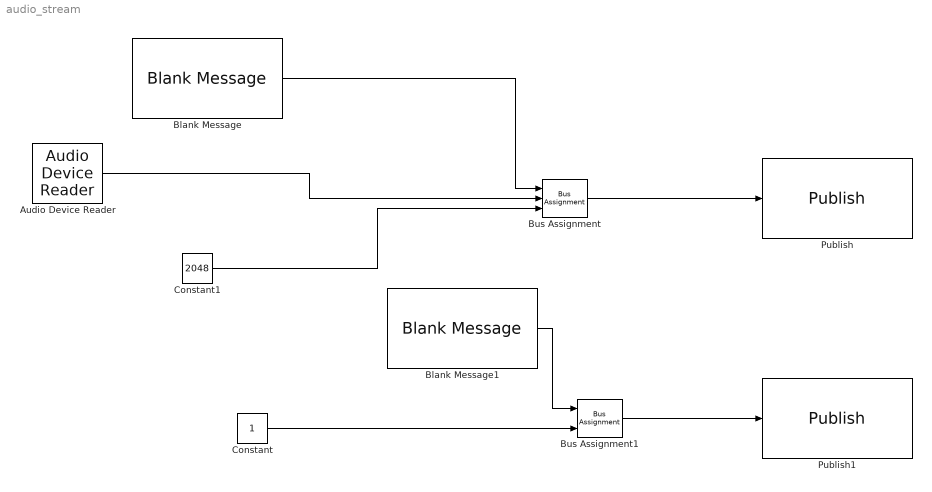
//
// Academic License - for use in teaching, academic research, and meeting
// course requirements at degree granting institutions only.  Not for
// government, commercial, or other organizational use.
//
// File: audio_stream.cpp
//
// Code generated for Simulink model 'audio_stream'.
//
// Model version                  : 1.3
// Simulink Coder version         : 9.3 (R2020a) 18-Nov-2019
// C/C++ source code generated on : Wed Jun  3 10:55:28 2020
//
// Target selection: ert.tlc
// Embedded hardware selection: Generic->Unspecified (assume 32-bit Generic)
// Code generation objectives: Unspecified
// Validation result: Not run
//
#include "audio_stream.h"
#include "audio_stream_private.h"

// Block signals (default storage)
B_audio_stream_T audio_stream_B;

// Block states (default storage)
DW_audio_stream_T audio_stream_DW;

// Real-time model
RT_MODEL_audio_stream_T audio_stream_M_ = RT_MODEL_audio_stream_T();
RT_MODEL_audio_stream_T *const audio_stream_M = &audio_stream_M_;

// Forward declaration for local functions
static void matlabCodegenHandle_matlabCodeg(ros_slros_internal_block_Publ_T *obj);
static void matlabCodegenHandle_matlabCodeg(ros_slros_internal_block_Publ_T *obj)
{
  if (!obj->matlabCodegenIsDeleted) {
    obj->matlabCodegenIsDeleted = true;
  }
}

// Model step function
void audio_stream_step(void)
{
  char_T *sErr;
  SL_Bus_audio_stream_geometry_msgs_Point rtb_BusAssignment1;

  // S-Function (saudioFromAudioDevice): '<Root>/Audio Device Reader'
  sErr = GetErrorBuffer(&audio_stream_DW.AudioDeviceReader_AudioDeviceLi[0U]);
  LibOutputs_Audio(&audio_stream_DW.AudioDeviceReader_AudioDeviceLi[0U],
                   &audio_stream_B.AudioDeviceReader[0U], 2, 2048, 0);
  if (*sErr != 0) {
    rtmSetErrorStatus(audio_stream_M, sErr);
    rtmSetStopRequested(audio_stream_M, 1);
  }

  // End of S-Function (saudioFromAudioDevice): '<Root>/Audio Device Reader'

  // BusAssignment: '<Root>/Bus Assignment' incorporates:
  //   Constant: '<Root>/Constant1'
  //   Constant: '<S1>/Constant'

  audio_stream_B.BusAssignment = audio_stream_P.Constant_Value;
  memcpy(&audio_stream_B.BusAssignment.Data[0],
         &audio_stream_B.AudioDeviceReader[0], sizeof(int16_T) << 11U);
  audio_stream_B.BusAssignment.Data_SL_Info.CurrentLength =
    audio_stream_P.Constant1_Value;

  // Outputs for Atomic SubSystem: '<Root>/Publish'
  // MATLABSystem: '<S3>/SinkBlock'
  Pub_audio_stream_6.publish(&audio_stream_B.BusAssignment);

  // End of Outputs for SubSystem: '<Root>/Publish'

  // BusAssignment: '<Root>/Bus Assignment1' incorporates:
  //   Constant: '<Root>/Constant'
  //   Constant: '<S2>/Constant'

  rtb_BusAssignment1 = audio_stream_P.Constant_Value_m;
  rtb_BusAssignment1.X = audio_stream_P.Constant_Value_c;

  // Outputs for Atomic SubSystem: '<Root>/Publish1'
  // MATLABSystem: '<S4>/SinkBlock'
  Pub_audio_stream_10.publish(&rtb_BusAssignment1);

  // End of Outputs for SubSystem: '<Root>/Publish1'
}
